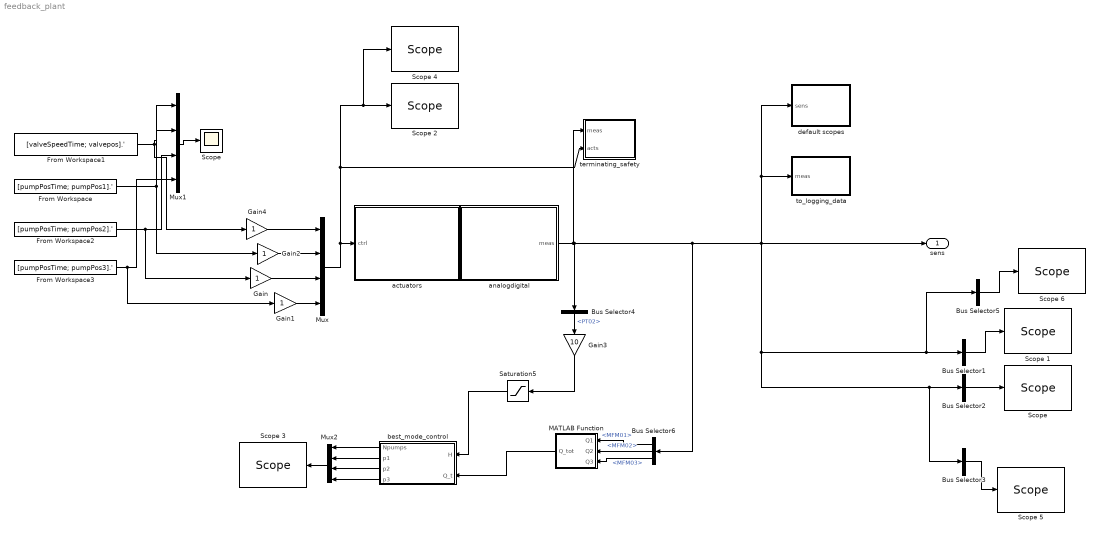
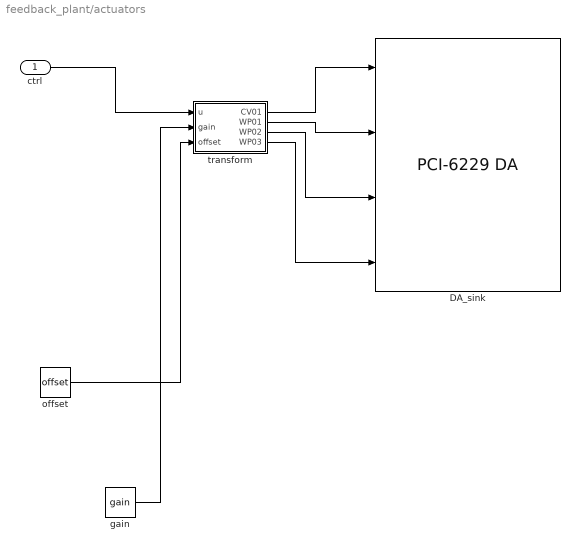
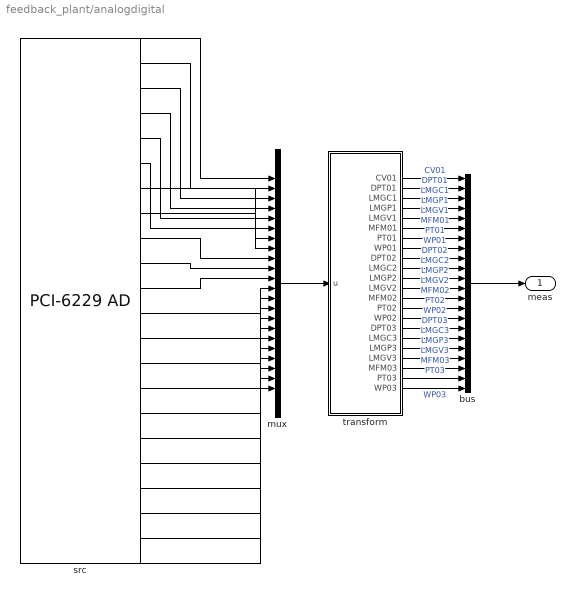
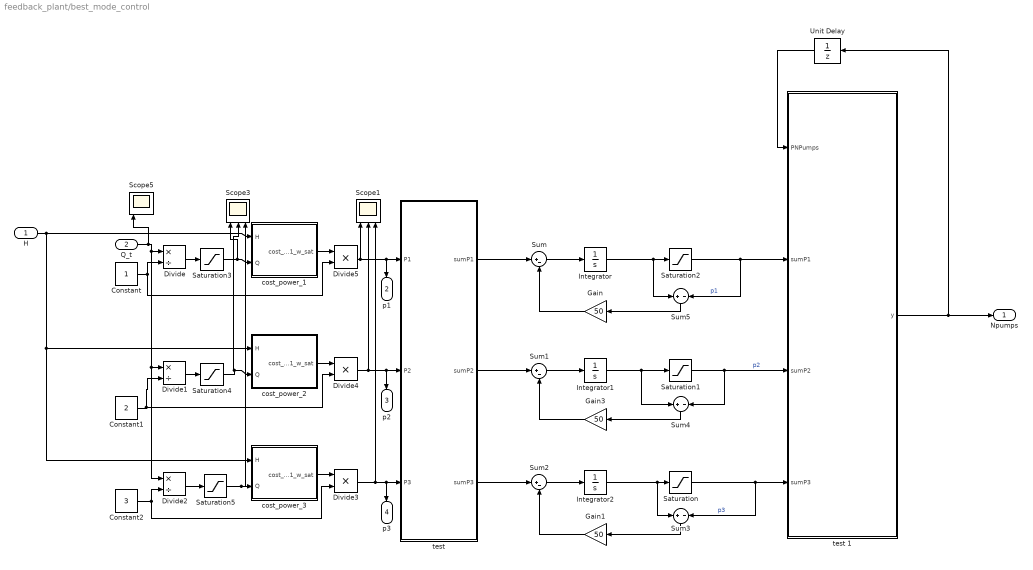
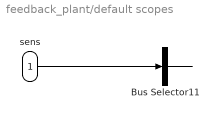
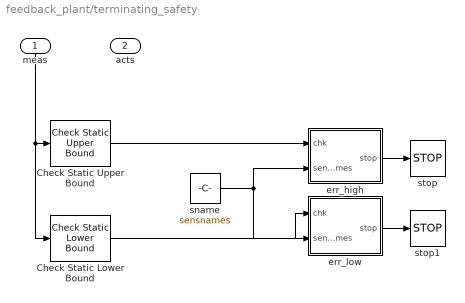
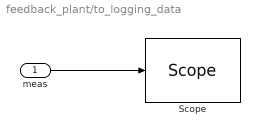
== matlab function feedback_plant/actuators/transform ==
function [CV01,WP01,WP02,WP03]  = fcn(u,gain,offset)
   y = u.*gain-offset;
CV01 = y(1);
WP01 = y(2);
WP02 = y(3);
WP03 = y(4);

== matlab function feedback_plant/analogdigital/transform ==
function [CV01,DPT01,LMGC1,LMGP1,LMGV1,MFM01,PT01,WP01,DPT02,LMGC2,LMGP2,LMGV2,MFM02,PT02,WP02,DPT03,LMGC3,LMGP3,LMGV3,MFM03,PT03,WP03]  = fcn(u,gain,offset)
   y = u(:).*gain(:)-offset(:);
CV01 = y(1);
DPT01 = y(2);
LMGC1 = y(3);
LMGP1 = y(4);
LMGV1 = y(5);
MFM01 = y(6);
PT01 = y(7);
WP01 = y(8);
DPT02 = y(9);
LMGC2 = y(10);
LMGP2 = y(11);
LMGV2 = y(12);
MFM02 = y(13);
PT02 = y(14);
WP02 = y(15);
DPT03 = y(16);
LMGC3 = y(17);
LMGP3 = y(18);
LMGV3 = y(19);
MFM03 = y(20);
PT03 = y(21);
WP03 = y(22);

== matlab function feedback_plant/MATLAB Function ==
function Q_tot = fcn(Q1, Q2, Q3)

Q_tot = ((Q1 + Q2 + Q3) *60 * 60)/1000;

== matlab function feedback_plant/terminating_safety/err_high ==
function stop  = fcn(chk, sensnames)
%#codegen
%test = char(sensnames.');
test = sensnames.';
k = find(test == 47);
k = [0 k];
k = [k numel(test)];
stop = 0;
for i = 1:numel(chk)
    if chk(i) == 0
        str = char(test(k(i)+1:k(i+1)-1));
        Error = [str ': VALUE TOO HIGH ']
        coder.ceval('printf', ['%s' 10 0], Error);
        stop = stop+1;
    end
end

== matlab function feedback_plant/terminating_safety/err_low ==
function stop  = fcn(chk, sensnames)
%#codegen
test = char(sensnames.');
k = strfind(test, '/');
k = [0 k];
k = [k numel(sensnames)];
stop = 0;
for i = 1:numel(chk)
    if chk(i) == 0
        str = char(test(k(i)+1:k(i+1)-1));
        Error = [str ': VALUE TOO LOW']
        coder.ceval('printf', ['%s' 10 0], Error);
        stop = stop+1;
    end
end

== matlab function feedback_plant/best_mode_control/cost_power_1 ==
function cost_power_1_w_sat = cost_power_1(H,Q)
%#codegen

%    This function was generated by the Symbolic Math Toolbox version 7.0.
%    14-Oct-2016 11:25:59

t2 = H.^2;
t3 = Q.^2;
t4 = H.*1.396903852036515e2;
t5 = Q.*3.495225250698616e1;
t6 = H.*t3.*1.223287779152999e-1;
t7 = Q.*t2.*1.66325485327369e-1;
t8 = H.*t2.*2.226602402994795e-2;
t9 = t3.*3.770314092453583e1;
t13 = t2.*2.5749360250113;
t14 = Q.*t3.*1.742768641280902;
t15 = H.*Q.*1.124558547771882e1;
t10 = t4+t5+t6+t7+t8+t9-t13-t14-t15+5.473012823773138e2;
t11 = t10;
t12 = max([t11,0.0]);
t16 = H.^1.386296711773041;
t17 = t16.*2.358991511181789;
t18 = Q.^2.776519861495102;
t19 = t18.*1.317701188625407;
t20 = H.*Q.*2.773249178787912;
t21 = t17+t19+t20+2.725420441582497e1;
cost_power_1_w_sat = double(((t12 < 3.6e2) || (1.8e3 < t21)) || (3.6e3 < t12)).*5.0e4+t21.*double(((3.6e2 <= t12) && (t21 <= 1.8e3)) && (t12 <= 3.6e3));

== matlab function feedback_plant/best_mode_control/test
 ==
function [sumP1, sumP2, sumP3] = cost_power_1(P1, P2, P3)
sumP1 = min(P2,P3) - P1;
sumP2 = min(P1,P3) - P2;
sumP3 = min(P1,P2) - P3;

== matlab function feedback_plant/best_mode_control/cost_power_2 ==
function cost_power_1_w_sat = cost_power_2(H,Q)
%#codegen

%    This function was generated by the Symbolic Math Toolbox version 7.0.
%    14-Oct-2016 11:25:59

t2 = H.^2;
t3 = Q.^2;
t4 = H.*1.396903852036515e2;
t5 = Q.*3.495225250698616e1;
t6 = H.*t3.*1.223287779152999e-1;
t7 = Q.*t2.*1.66325485327369e-1;
t8 = H.*t2.*2.226602402994795e-2;
t9 = t3.*3.770314092453583e1;
t13 = t2.*2.5749360250113;
t14 = Q.*t3.*1.742768641280902;
t15 = H.*Q.*1.124558547771882e1;
t10 = t4+t5+t6+t7+t8+t9-t13-t14-t15+5.473012823773138e2;
t11 = t10;
t12 = max([t11,0.0]);
t16 = H.^1.386296711773041;
t17 = t16.*2.358991511181789;
t18 = Q.^2.776519861495102;
t19 = t18.*1.317701188625407;
t20 = H.*Q.*2.773249178787912;
t21 = t17+t19+t20+2.725420441582497e1;
cost_power_1_w_sat = double(((t12 < 3.6e2) || (1.8e3 < t21)) || (3.6e3 < t12)).*5.0e4+t21.*double(((3.6e2 <= t12) && (t21 <= 1.8e3)) && (t12 <= 3.6e3));

== matlab function feedback_plant/best_mode_control/cost_power_3 ==
function cost_power_1_w_sat = cost_power_3(H,Q)
%#codegen

%    This function was generated by the Symbolic Math Toolbox version 7.0.
%    14-Oct-2016 11:25:59

t2 = H.^2;
t3 = Q.^2;
t4 = H.*1.396903852036515e2;
t5 = Q.*3.495225250698616e1;
t6 = H.*t3.*1.223287779152999e-1;
t7 = Q.*t2.*1.66325485327369e-1;
t8 = H.*t2.*2.226602402994795e-2;
t9 = t3.*3.770314092453583e1;
t13 = t2.*2.5749360250113;
t14 = Q.*t3.*1.742768641280902;
t15 = H.*Q.*1.124558547771882e1;
t10 = t4+t5+t6+t7+t8+t9-t13-t14-t15+5.473012823773138e2;
t11 = t10;
t12 = max([t11,0.0]);
t16 = H.^1.386296711773041;
t17 = t16.*2.358991511181789;
t18 = Q.^2.776519861495102;
t19 = t18.*1.317701188625407;
t20 = H.*Q.*2.773249178787912;
t21 = t17+t19+t20+2.725420441582497e1;
cost_power_1_w_sat = double(((t12 < 3.6e2) || (1.8e3 < t21)) || (3.6e3 < t12)).*5.0e4+t21.*double(((3.6e2 <= t12) && (t21 <= 1.8e3)) && (t12 <= 3.6e3));

== matlab function feedback_plant/best_mode_control/test
1 ==
function y = cost_power_1(PNPumps,sumP1, sumP2, sumP3)
powerVector = [sumP1, sumP2, sumP3];
[~,Npumps] = max([sumP1, sumP2, sumP3]);
if Npumps == PNPumps
    y = Npumps;
else 
    if abs(powerVector(Npumps) - powerVector(PNPumps)) > 10
        y = Npumps;
    else
        y = PNPumps;
    end
    
end

/*
 * feedback_plant.c
 *
 * Academic License - for use in teaching, academic research, and meeting
 * course requirements at degree granting institutions only.  Not for
 * government, commercial, or other organizational use.
 *
 * Code generation for model "feedback_plant".
 *
 * Model version              : 1.348
 * Simulink Coder version : 8.10 (R2016a) 10-Feb-2016
 * C source code generated on : Sun Oct 16 17:14:45 2016
 *
 * Target selection: slrt.tlc
 * Note: GRT includes extra infrastructure and instrumentation for prototyping
 * Embedded hardware selection: Generic->32-bit x86 compatible
 * Code generation objectives: Unspecified
 * Validation result: Not run
 */

#include "rt_logging_mmi.h"
#include "feedback_plant_capi.h"
#include "feedback_plant.h"
#include "feedback_plant_private.h"

/* Block signals (auto storage) */
B_feedback_plant_T feedback_plant_B;

/* Continuous states */
X_feedback_plant_T feedback_plant_X;

/* Block states (auto storage) */
DW_feedback_plant_T feedback_plant_DW;

/* External outputs (root outports fed by signals with auto storage) */
ExtY_feedback_plant_T feedback_plant_Y;

/* Real-time model */
RT_MODEL_feedback_plant_T feedback_plant_M_;
RT_MODEL_feedback_plant_T *const feedback_plant_M = &feedback_plant_M_;

/*
 * This function updates continuous states using the ODE3 fixed-step
 * solver algorithm
 */
static void rt_ertODEUpdateContinuousStates(RTWSolverInfo *si )
{
  /* Solver Matrices */
  static const real_T rt_ODE3_A[3] = {
    1.0/2.0, 3.0/4.0, 1.0
  };

  static const real_T rt_ODE3_B[3][3] = {
    { 1.0/2.0, 0.0, 0.0 },

    { 0.0, 3.0/4.0, 0.0 },

    { 2.0/9.0, 1.0/3.0, 4.0/9.0 }
  };

  time_T t = rtsiGetT(si);
  time_T tnew = rtsiGetSolverStopTime(si);
  time_T h = rtsiGetStepSize(si);
  real_T *x = rtsiGetContStates(si);
  ODE3_IntgData *id = (ODE3_IntgData *)rtsiGetSolverData(si);
  real_T *y = id->y;
  real_T *f0 = id->f[0];
  real_T *f1 = id->f[1];
  real_T *f2 = id->f[2];
  real_T hB[3];
  int_T i;
  int_T nXc = 3;
  rtsiSetSimTimeStep(si,MINOR_TIME_STEP);

  /* Save the state values at time t in y, we'll use x as ynew. */
  (void) memcpy(y, x,
                (uint_T)nXc*sizeof(real_T));

  /* Assumes that rtsiSetT and ModelOutputs are up-to-date */
  /* f0 = f(t,y) */
  rtsiSetdX(si, f0);
  feedback_plant_derivatives();

  /* f(:,2) = feval(odefile, t + hA(1), y + f*hB(:,1), args(:)(*)); */
  hB[0] = h * rt_ODE3_B[0][0];
  for (i = 0; i < nXc; i++) {
    x[i] = y[i] + (f0[i]*hB[0]);
  }

  rtsiSetT(si, t + h*rt_ODE3_A[0]);
  rtsiSetdX(si, f1);
  feedback_plant_output();
  feedback_plant_derivatives();

  /* f(:,3) = feval(odefile, t + hA(2), y + f*hB(:,2), args(:)(*)); */
  for (i = 0; i <= 1; i++) {
    hB[i] = h * rt_ODE3_B[1][i];
  }

  for (i = 0; i < nXc; i++) {
    x[i] = y[i] + (f0[i]*hB[0] + f1[i]*hB[1]);
  }

  rtsiSetT(si, t + h*rt_ODE3_A[1]);
  rtsiSetdX(si, f2);
  feedback_plant_output();
  feedback_plant_derivatives();

  /* tnew = t + hA(3);
     ynew = y + f*hB(:,3); */
  for (i = 0; i <= 2; i++) {
    hB[i] = h * rt_ODE3_B[2][i];
  }

  for (i = 0; i < nXc; i++) {
    x[i] = y[i] + (f0[i]*hB[0] + f1[i]*hB[1] + f2[i]*hB[2]);
  }

  rtsiSetT(si, tnew);
  rtsiSetSimTimeStep(si,MAJOR_TIME_STEP);
}

real_T rt_powd_snf(real_T u0, real_T u1)
{
  real_T y;
  real_T tmp;
  real_T tmp_0;
  if (rtIsNaN(u0) || rtIsNaN(u1)) {
    y = (rtNaN);
  } else {
    tmp = fabs(u0);
    tmp_0 = fabs(u1);
    if (rtIsInf(u1)) {
      if (tmp == 1.0) {
        y = (rtNaN);
      } else if (tmp > 1.0) {
        if (u1 > 0.0) {
          y = (rtInf);
        } else {
          y = 0.0;
        }
      } else if (u1 > 0.0) {
        y = 0.0;
      } else {
        y = (rtInf);
      }
    } else if (tmp_0 == 0.0) {
      y = 1.0;
    } else if (tmp_0 == 1.0) {
      if (u1 > 0.0) {
        y = u0;
      } else {
        y = 1.0 / u0;
      }
    } else if (u1 == 2.0) {
      y = u0 * u0;
    } else if ((u1 == 0.5) && (u0 >= 0.0)) {
      y = sqrt(u0);
    } else if ((u0 < 0.0) && (u1 > floor(u1))) {
      y = (rtNaN);
    } else {
      y = pow(u0, u1);
    }
  }

  return y;
}

/* Model output function */
void feedback_plant_output(void)
{
  real_T y[22];
  uint8_T test[124];
  boolean_T x[124];
  int32_T idx;
  int32_T b_ii;
  static const char_T f[17] = { ':', ' ', 'V', 'A', 'L', 'U', 'E', ' ', 'T', 'O',
    'O', ' ', 'H', 'I', 'G', 'H', ' ' };

  boolean_T exitg1;
  char_T test_0[124];
  int8_T matches[124];
  int32_T j;
  static const char_T e[15] = { ':', ' ', 'V', 'A', 'L', 'U', 'E', ' ', 'T', 'O',
    'O', ' ', 'L', 'O', 'W' };

  boolean_T c;
  real_T powerVector[3];
  real_T varargin_1[3];
  int32_T i;
  char_T e_0[4];
  char_T d[4];
  int32_T loop_ub;
  int8_T k_data[126];
  char_T Error_data[140];
  int8_T ii_data[124];
  int8_T k_data_0[126];
  char_T Error_data_0[138];
  char_T test_data[123];
  char_T test_data_0[123];
  real_T y_idx_0;
  real_T y_idx_1;
  real_T y_idx_2;
  real_T y_idx_3;
  int32_T tmp;
  int8_T tmp_0;
  if (rtmIsMajorTimeStep(feedback_plant_M)) {
    /* set solver stop time */
    if (!(feedback_plant_M->Timing.clockTick0+1)) {
      rtsiSetSolverStopTime(&feedback_plant_M->solverInfo,
                            ((feedback_plant_M->Timing.clockTickH0 + 1) *
        feedback_plant_M->Timing.stepSize0 * 4294967296.0));
    } else {
      rtsiSetSolverStopTime(&feedback_plant_M->solverInfo,
                            ((feedback_plant_M->Timing.clockTick0 + 1) *
        feedback_plant_M->Timing.stepSize0 +
        feedback_plant_M->Timing.clockTickH0 *
        feedback_plant_M->Timing.stepSize0 * 4294967296.0));
    }
  }                                    /* end MajorTimeStep */

  /* Update absolute time of base rate at minor time step */
  if (rtmIsMinorTimeStep(feedback_plant_M)) {
    feedback_plant_M->Timing.t[0] = rtsiGetT(&feedback_plant_M->solverInfo);
  }

  if (rtmIsMajorTimeStep(feedback_plant_M)) {
    /* Level2 S-Function Block: '<S10>/src' (adnipcim) */
    {
      SimStruct *rts = feedback_plant_M->childSfunctions[0];
      sfcnOutputs(rts, 1);
    }

    /* SignalConversion: '<S16>/TmpSignal ConversionAt SFunction Inport1' incorporates:
     *  MATLAB Function: '<S10>/transform'
     */
    feedback_plant_B.TmpSignalConversionAtSFunctionI[0] =
      feedback_plant_B.src_o1;
    feedback_plant_B.TmpSignalConversionAtSFunctionI[1] =
      feedback_plant_B.src_o2;
    feedback_plant_B.TmpSignalConversionAtSFunctionI[2] =
      feedback_plant_B.src_o3;
    feedback_plant_B.TmpSignalConversionAtSFunctionI[3] =
      feedback_plant_B.src_o4;
    feedback_plant_B.TmpSignalConversionAtSFunctionI[4] =
      feedback_plant_B.src_o5;
    feedback_plant_B.TmpSignalConversionAtSFunctionI[5] =
      feedback_plant_B.src_o6;
    feedback_plant_B.TmpSignalConversionAtSFunctionI[6] =
      feedback_plant_B.src_o7;
    feedback_plant_B.TmpSignalConversionAtSFunctionI[7] =
      feedback_plant_B.src_o8;
    feedback_plant_B.TmpSignalConversionAtSFunctionI[8] =
      feedback_plant_B.src_o9;
    feedback_plant_B.TmpSignalConversionAtSFunctionI[9] =
      feedback_plant_B.src_o10;
    feedback_plant_B.TmpSignalConversionAtSFunctionI[10] =
      feedback_plant_B.src_o11;
    feedback_plant_B.TmpSignalConversionAtSFunctionI[11] =
      feedback_plant_B.src_o12;
    feedback_plant_B.TmpSignalConversionAtSFunctionI[12] =
      feedback_plant_B.src_o13;
    feedback_plant_B.TmpSignalConversionAtSFunctionI[13] =
      feedback_plant_B.src_o14;
    feedback_plant_B.TmpSignalConversionAtSFunctionI[14] =
      feedback_plant_B.src_o15;
    feedback_plant_B.TmpSignalConversionAtSFunctionI[15] =
      feedback_plant_B.src_o16;
    feedback_plant_B.TmpSignalConversionAtSFunctionI[16] =
      feedback_plant_B.src_o17;
    feedback_plant_B.TmpSignalConversionAtSFunctionI[17] =
      feedback_plant_B.src_o18;
    feedback_plant_B.TmpSignalConversionAtSFunctionI[18] =
      feedback_plant_B.src_o19;
    feedback_plant_B.TmpSignalConversionAtSFunctionI[19] =
      feedback_plant_B.src_o20;
    feedback_plant_B.TmpSignalConversionAtSFunctionI[20] =
      feedback_plant_B.src_o21;
    feedback_plant_B.TmpSignalConversionAtSFunctionI[21] =
      feedback_plant_B.src_o22;

    /* MATLAB Function: '<S10>/transform' */
    /* MATLAB Function 'analogdigital/transform': '<S16>:1' */
    /* '<S16>:1:2' */
    for (i = 0; i < 22; i++) {
      y[i] = feedback_plant_B.TmpSignalConversionAtSFunctionI[i] *
        feedback_plant_ConstP.transform_gain[i] -
        feedback_plant_ConstP.transform_offset[i];
    }

    /* '<S16>:1:3' */
    feedback_plant_B.CV01 = y[0];

    /* '<S16>:1:4' */
    feedback_plant_B.DPT01 = y[1];

    /* '<S16>:1:5' */
    feedback_plant_B.LMGC1 = y[2];

    /* '<S16>:1:6' */
    feedback_plant_B.LMGP1 = y[3];

    /* '<S16>:1:7' */
    feedback_plant_B.LMGV1 = y[4];

    /* '<S16>:1:8' */
    feedback_plant_B.MFM01 = y[5];

    /* '<S16>:1:9' */
    feedback_plant_B.PT01 = y[6];

    /* '<S16>:1:10' */
    feedback_plant_B.WP01 = y[7];

    /* '<S16>:1:11' */
    feedback_plant_B.DPT02 = y[8];

    /* '<S16>:1:12' */
    feedback_plant_B.LMGC2 = y[9];

    /* '<S16>:1:13' */
    feedback_plant_B.LMGP2 = y[10];

    /* '<S16>:1:14' */
    feedback_plant_B.LMGV2 = y[11];

    /* '<S16>:1:15' */
    feedback_plant_B.MFM02 = y[12];

    /* '<S16>:1:16' */
    feedback_plant_B.PT02 = y[13];

    /* '<S16>:1:17' */
    feedback_plant_B.WP02 = y[14];

    /* '<S16>:1:18' */
    feedback_plant_B.DPT03 = y[15];

    /* '<S16>:1:19' */
    feedback_plant_B.LMGC3 = y[16];

    /* '<S16>:1:20' */
    feedback_plant_B.LMGP3 = y[17];

    /* '<S16>:1:21' */
    feedback_plant_B.LMGV3 = y[18];

    /* '<S16>:1:22' */
    feedback_plant_B.MFM03 = y[19];

    /* '<S16>:1:23' */
    feedback_plant_B.PT03 = y[20];

    /* '<S16>:1:24' */
    feedback_plant_B.WP03 = y[21];

    /* Outport: '<Root>/sens' */
    feedback_plant_Y.sens[0] = feedback_plant_B.CV01;
    feedback_plant_Y.sens[1] = feedback_plant_B.DPT01;
    feedback_plant_Y.sens[2] = feedback_plant_B.LMGC1;
    feedback_plant_Y.sens[3] = feedback_plant_B.LMGP1;
    feedback_plant_Y.sens[4] = feedback_plant_B.LMGV1;
    feedback_plant_Y.sens[5] = feedback_plant_B.MFM01;
    feedback_plant_Y.sens[6] = feedback_plant_B.PT01;
    feedback_plant_Y.sens[7] = feedback_plant_B.WP01;
    feedback_plant_Y.sens[8] = feedback_plant_B.DPT02;
    feedback_plant_Y.sens[9] = feedback_plant_B.LMGC2;
    feedback_plant_Y.sens[10] = feedback_plant_B.LMGP2;
    feedback_plant_Y.sens[11] = feedback_plant_B.LMGV2;
    feedback_plant_Y.sens[12] = feedback_plant_B.MFM02;
    feedback_plant_Y.sens[13] = feedback_plant_B.PT02;
    feedback_plant_Y.sens[14] = feedback_plant_B.WP02;
    feedback_plant_Y.sens[15] = feedback_plant_B.DPT03;
    feedback_plant_Y.sens[16] = feedback_plant_B.LMGC3;
    feedback_plant_Y.sens[17] = feedback_plant_B.LMGP3;
    feedback_plant_Y.sens[18] = feedback_plant_B.LMGV3;
    feedback_plant_Y.sens[19] = feedback_plant_B.MFM03;
    feedback_plant_Y.sens[20] = feedback_plant_B.PT03;
    feedback_plant_Y.sens[21] = feedback_plant_B.WP03;
  }

  /* FromWorkspace: '<Root>/From Workspace1' */
  {
    real_T t = feedback_plant_M->Timing.t[0];
    real_T *pTimeValues = (real_T *)
      feedback_plant_DW.FromWorkspace1_PWORK.TimePtr;
    real_T *pDataValues = (real_T *)
      feedback_plant_DW.FromWorkspace1_PWORK.DataPtr;
    if (t < pTimeValues[0]) {
      feedback_plant_B.FromWorkspace1 = 0.0;
    } else if (t >= pTimeValues[20]) {
      feedback_plant_B.FromWorkspace1 = pDataValues[20];
    } else {
      int_T currTimeIndex = feedback_plant_DW.FromWorkspace1_IWORK.PrevIndex;
      if (t < pTimeValues[currTimeIndex]) {
        while (t < pTimeValues[currTimeIndex]) {
          currTimeIndex--;
        }
      } else {
        while (t >= pTimeValues[currTimeIndex + 1]) {
          currTimeIndex++;
        }
      }

      feedback_plant_B.FromWorkspace1 = pDataValues[currTimeIndex];
      feedback_plant_DW.FromWorkspace1_IWORK.PrevIndex = currTimeIndex;
    }
  }

  /* FromWorkspace: '<Root>/From Workspace' */
  {
    real_T t = feedback_plant_M->Timing.t[0];
    real_T *pTimeValues = (real_T *)
      feedback_plant_DW.FromWorkspace_PWORK.TimePtr;
    real_T *pDataValues = (real_T *)
      feedback_plant_DW.FromWorkspace_PWORK.DataPtr;
    if (t < pTimeValues[0]) {
      feedback_plant_B.FromWorkspace = 0.0;
    } else if (t >= pTimeValues[482]) {
      feedback_plant_B.FromWorkspace = pDataValues[482];
    } else {
      int_T currTimeIndex = feedback_plant_DW.FromWorkspace_IWORK.PrevIndex;
      if (t < pTimeValues[currTimeIndex]) {
        while (t < pTimeValues[currTimeIndex]) {
          currTimeIndex--;
        }
      } else {
        while (t >= pTimeValues[currTimeIndex + 1]) {
          currTimeIndex++;
        }
      }

      feedback_plant_B.FromWorkspace = pDataValues[currTimeIndex];
      feedback_plant_DW.FromWorkspace_IWORK.PrevIndex = currTimeIndex;
    }
  }

  /* FromWorkspace: '<Root>/From Workspace2' */
  {
    real_T t = feedback_plant_M->Timing.t[0];
    real_T *pTimeValues = (real_T *)
      feedback_plant_DW.FromWorkspace2_PWORK.TimePtr;
    real_T *pDataValues = (real_T *)
      feedback_plant_DW.FromWorkspace2_PWORK.DataPtr;
    if (t < pTimeValues[0]) {
      feedback_plant_B.FromWorkspace2 = 0.0;
    } else if (t >= pTimeValues[482]) {
      feedback_plant_B.FromWorkspace2 = pDataValues[482];
    } else {
      int_T currTimeIndex = feedback_plant_DW.FromWorkspace2_IWORK.PrevIndex;
      if (t < pTimeValues[currTimeIndex]) {
        while (t < pTimeValues[currTimeIndex]) {
          currTimeIndex--;
        }
      } else {
        while (t >= pTimeValues[currTimeIndex + 1]) {
          currTimeIndex++;
        }
      }

      feedback_plant_B.FromWorkspace2 = pDataValues[currTimeIndex];
      feedback_plant_DW.FromWorkspace2_IWORK.PrevIndex = currTimeIndex;
    }
  }

  /* FromWorkspace: '<Root>/From Workspace3' */
  {
    real_T t = feedback_plant_M->Timing.t[0];
    real_T *pTimeValues = (real_T *)
      feedback_plant_DW.FromWorkspace3_PWORK.TimePtr;
    real_T *pDataValues = (real_T *)
      feedback_plant_DW.FromWorkspace3_PWORK.DataPtr;
    if (t < pTimeValues[0]) {
      feedback_plant_B.FromWorkspace3 = 0.0;
    } else if (t >= pTimeValues[482]) {
      feedback_plant_B.FromWorkspace3 = pDataValues[482];
    } else {
      int_T currTimeIndex = feedback_plant_DW.FromWorkspace3_IWORK.PrevIndex;
      if (t < pTimeValues[currTimeIndex]) {
        while (t < pTimeValues[currTimeIndex]) {
          currTimeIndex--;
        }
      } else {
        while (t >= pTimeValues[currTimeIndex + 1]) {
          currTimeIndex++;
        }
      }

      feedback_plant_B.FromWorkspace3 = pDataValues[currTimeIndex];
      feedback_plant_DW.FromWorkspace3_IWORK.PrevIndex = currTimeIndex;
    }
  }

  if (rtmIsMajorTimeStep(feedback_plant_M)) {
    /* ok to acquire for <S2>/S-Function */
    feedback_plant_DW.SFunction_IWORK.AcquireOK = 1;

    /* ok to acquire for <S3>/S-Function */
    feedback_plant_DW.SFunction_IWORK_l.AcquireOK = 1;
  }

  /* ok to acquire for <S4>/S-Function */
  feedback_plant_DW.SFunction_IWORK_i.AcquireOK = 1;

  /* ok to acquire for <S5>/S-Function */
  feedback_plant_DW.SFunction_IWORK_o.AcquireOK = 1;

  /* ok to acquire for <S6>/S-Function */
  feedback_plant_DW.SFunction_IWORK_n.AcquireOK = 1;
  if (rtmIsMajorTimeStep(feedback_plant_M)) {
    /* ok to acquire for <S7>/S-Function */
    feedback_plant_DW.SFunction_IWORK_g.AcquireOK = 1;

    /* ok to acquire for <S8>/S-Function */
    feedback_plant_DW.SFunction_IWORK_l4.AcquireOK = 1;
  }

  /* Gain: '<Root>/Gain4' */
  feedback_plant_B.Gain4 = 1.0 * feedback_plant_B.FromWorkspace1;

  /* Gain: '<Root>/Gain2' */
  feedback_plant_B.Gain2 = 1.0 * feedback_plant_B.FromWorkspace;

  /* Gain: '<Root>/Gain' */
  feedback_plant_B.Gain = 1.0 * feedback_plant_B.FromWorkspace2;

  /* Gain: '<Root>/Gain1' */
  feedback_plant_B.Gain1 = 1.0 * feedback_plant_B.FromWorkspace3;

  /* SignalConversion: '<S15>/TmpSignal ConversionAt SFunction Inport1' incorporates:
   *  MATLAB Function: '<S9>/transform'
   */
  feedback_plant_B.TmpSignalConversionAtSFunctio_d[0] = feedback_plant_B.Gain4;
  feedback_plant_B.TmpSignalConversionAtSFunctio_d[1] = feedback_plant_B.Gain2;
  feedback_plant_B.TmpSignalConversionAtSFunctio_d[2] = feedback_plant_B.Gain;
  feedback_plant_B.TmpSignalConversionAtSFunctio_d[3] = feedback_plant_B.Gain1;

  /* MATLAB Function: '<S9>/transform' incorporates:
   *  Constant: '<S9>/gain'
   *  Constant: '<S9>/offset'
   */
  /* MATLAB Function 'actuators/transform': '<S15>:1' */
  /* '<S15>:1:2' */
  y_idx_0 = feedback_plant_B.TmpSignalConversionAtSFunctio_d[0] * 10.0 - (-0.0);
  y_idx_1 = feedback_plant_B.TmpSignalConversionAtSFunctio_d[1] * 10.0 - (-0.0);
  y_idx_2 = feedback_plant_B.TmpSignalConversionAtSFunctio_d[2] * 10.0 - (-0.0);
  y_idx_3 = feedback_plant_B.TmpSignalConversionAtSFunctio_d[3] * 10.0 - (-0.0);

  /* '<S15>:1:3' */
  feedback_plant_B.CV01_j = y_idx_0;

  /* '<S15>:1:4' */
  feedback_plant_B.WP01_o = y_idx_1;

  /* '<S15>:1:5' */
  feedback_plant_B.WP02_l = y_idx_2;

  /* '<S15>:1:6' */
  feedback_plant_B.WP03_d = y_idx_3;
  if (rtmIsMajorTimeStep(feedback_plant_M)) {
    /* Level2 S-Function Block: '<S9>/DA_sink' (danipcim) */
    {
      SimStruct *rts = feedback_plant_M->childSfunctions[1];
      sfcnOutputs(rts, 1);
    }

    /* RelationalOperator: '<S23>/max_relop' incorporates:
     *  Constant: '<S23>/max_val'
     */
    feedback_plant_B.max_relop[0] = (feedback_plant_B.CV01 <= 1050.05);
    feedback_plant_B.max_relop[1] = (feedback_plant_B.DPT01 <= 1050.05);
    feedback_plant_B.max_relop[2] = (feedback_plant_B.LMGC1 <= 1050.05);
    feedback_plant_B.max_relop[3] = (feedback_plant_B.LMGP1 <= 4200.05);
    feedback_plant_B.max_relop[4] = (feedback_plant_B.LMGV1 <= 1050.05);
    feedback_plant_B.max_relop[5] = (feedback_plant_B.MFM01 <= 1050.05);
    feedback_plant_B.max_relop[6] = (feedback_plant_B.PT01 <= 1050.05);
    feedback_plant_B.max_relop[7] = (feedback_plant_B.WP01 <= 4200.05);
    feedback_plant_B.max_relop[8] = (feedback_plant_B.DPT02 <= 1050.05);
    feedback_plant_B.max_relop[9] = (feedback_plant_B.LMGC2 <= 1050.05);
    feedback_plant_B.max_relop[10] = (feedback_plant_B.LMGP2 <= 4200.05);
    feedback_plant_B.max_relop[11] = (feedback_plant_B.LMGV2 <= 1050.05);
    feedback_plant_B.max_relop[12] = (feedback_plant_B.MFM02 <= 1050.05);
    feedback_plant_B.max_relop[13] = (feedback_plant_B.PT02 <= 1050.05);
    feedback_plant_B.max_relop[14] = (feedback_plant_B.WP02 <= 4200.05);
    feedback_plant_B.max_relop[15] = (feedback_plant_B.DPT03 <= 1050.05);
    feedback_plant_B.max_relop[16] = (feedback_plant_B.LMGC3 <= 1050.05);
    feedback_plant_B.max_relop[17] = (feedback_plant_B.LMGP3 <= 4200.05);
    feedback_plant_B.max_relop[18] = (feedback_plant_B.LMGV3 <= 1050.05);
    feedback_plant_B.max_relop[19] = (feedback_plant_B.MFM03 <= 1050.05);
    feedback_plant_B.max_relop[20] = (feedback_plant_B.PT03 <= 1050.05);
    feedback_plant_B.max_relop[21] = (feedback_plant_B.WP03 <= 4200.05);

    /* MATLAB Function: '<S13>/err_high' incorporates:
     *  Constant: '<S13>/sname'
     */
    /* MATLAB Function 'terminating_safety/err_high': '<S24>:1' */
    /* '<S24>:1:13' */
    /* '<S24>:1:12' */
    /* test = char(sensnames.'); */
    /* '<S24>:1:4' */
    /* '<S24>:1:5' */
    for (i = 0; i < 124; i++) {
      test[i] = feedback_plant_ConstP.sname_Value[i];
      x[i] = (feedback_plant_ConstP.sname_Value[i] == 47);
    }

    idx = 0;
    b_ii = 1;
    exitg1 = false;
    while ((!exitg1) && (b_ii < 125)) {
      c = false;
      if (x[b_ii - 1]) {
        idx++;
        ii_data[idx - 1] = (int8_T)b_ii;
        if (idx >= 124) {
          exitg1 = true;
        } else {
          c = true;
        }
      } else {
        c = true;
      }

      if (c) {
        b_ii++;
      }
    }

    if (1 > idx) {
      idx = 0;
    }

    /* '<S24>:1:6' */
    /* '<S24>:1:7' */
    k_data[0] = 0;
    for (i = 0; i < idx; i++) {
      k_data[i + 1] = ii_data[i];
    }

    k_data[1 + idx] = 124;

    /* '<S24>:1:8' */
    y_idx_0 = 0.0;

    /* '<S24>:1:9' */
    for (idx = 0; idx < 22; idx++) {
      /* '<S24>:1:9' */
      if (!feedback_plant_B.max_relop[idx]) {
        /* '<S24>:1:10' */
        if (k_data[idx] + 1 > k_data[1 + idx] - 1) {
          b_ii = 1;
          j = 1;
        } else {
          b_ii = k_data[idx] + 1;
          j = k_data[1 + idx];
        }

        /* '<S24>:1:11' */
        /* '<S24>:1:12' */
        tmp = j - b_ii;
        loop_ub = j - b_ii;
        for (i = 0; i < loop_ub; i++) {
          test_data[i] = (int8_T)test[(b_ii + i) - 1];
        }

        tmp_0 = (int8_T)(j - b_ii);
        for (i = 0; i < tmp; i++) {
          test_data_0[i] = test_data[i];
        }

        tmp = tmp_0;
        for (i = 0; i < tmp; i++) {
          Error_data[i] = test_data_0[i];
        }

        for (i = 0; i < 17; i++) {
          Error_data[i + tmp] = f[i];
        }

        e_0[0] = '%';
        e_0[1] = 's';
        e_0[2] = '\x0a';
        e_0[3] = '\x00';
        printf(e_0, &Error_data[0]);

        /* '<S24>:1:14' */
        y_idx_0++;
      }

      /* '<S24>:1:9' */
    }

    feedback_plant_B.stop_a = y_idx_0;

    /* End of MATLAB Function: '<S13>/err_high' */

    /* Stop: '<S13>/stop' */
    if (feedback_plant_B.stop_a != 0.0) {
      rtmSetStopRequested(feedback_plant_M, 1);
    }

    /* End of Stop: '<S13>/stop' */

    /* RelationalOperator: '<S22>/min_relop' incorporates:
     *  Constant: '<S22>/min_val'
     */
    feedback_plant_B.min_relop[0] = ((-51.050000000000004) <=
      feedback_plant_B.CV01);
    feedback_plant_B.min_relop[1] = ((-51.050000000000004) <=
      feedback_plant_B.DPT01);
    feedback_plant_B.min_relop[2] = ((-51.050000000000004) <=
      feedback_plant_B.LMGC1);
    feedback_plant_B.min_relop[3] = ((-201.05) <= feedback_plant_B.LMGP1);
    feedback_plant_B.min_relop[4] = ((-51.050000000000004) <=
      feedback_plant_B.LMGV1);
    feedback_plant_B.min_relop[5] = ((-51.050000000000004) <=
      feedback_plant_B.MFM01);
    feedback_plant_B.min_relop[6] = ((-51.050000000000004) <=
      feedback_plant_B.PT01);
    feedback_plant_B.min_relop[7] = ((-201.05) <= feedback_plant_B.WP01);
    feedback_plant_B.min_relop[8] = ((-51.050000000000004) <=
      feedback_plant_B.DPT02);
    feedback_plant_B.min_relop[9] = ((-51.050000000000004) <=
      feedback_plant_B.LMGC2);
    feedback_plant_B.min_relop[10] = ((-201.05) <= feedback_plant_B.LMGP2);
    feedback_plant_B.min_relop[11] = ((-51.050000000000004) <=
      feedback_plant_B.LMGV2);
    feedback_plant_B.min_relop[12] = ((-51.050000000000004) <=
      feedback_plant_B.MFM02);
    feedback_plant_B.min_relop[13] = ((-51.050000000000004) <=
      feedback_plant_B.PT02);
    feedback_plant_B.min_relop[14] = ((-201.05) <= feedback_plant_B.WP02);
    feedback_plant_B.min_relop[15] = ((-51.050000000000004) <=
      feedback_plant_B.DPT03);
    feedback_plant_B.min_relop[16] = ((-51.050000000000004) <=
      feedback_plant_B.LMGC3);
    feedback_plant_B.min_relop[17] = ((-201.05) <= feedback_plant_B.LMGP3);
    feedback_plant_B.min_relop[18] = ((-51.050000000000004) <=
      feedback_plant_B.LMGV3);
    feedback_plant_B.min_relop[19] = ((-51.050000000000004) <=
      feedback_plant_B.MFM03);
    feedback_plant_B.min_relop[20] = ((-51.050000000000004) <=
      feedback_plant_B.PT03);
    feedback_plant_B.min_relop[21] = ((-201.05) <= feedback_plant_B.WP03);

    /* MATLAB Function: '<S13>/err_low' incorporates:
     *  Constant: '<S13>/sname'
     */
    /* MATLAB Function 'terminating_safety/err_low': '<S25>:1' */
    /* '<S25>:1:12' */
    /* '<S25>:1:11' */
    /* '<S25>:1:3' */
    /* '<S25>:1:4' */
    idx = 0;
    for (b_ii = 0; b_ii < 124; b_ii++) {
      test_0[b_ii] = (int8_T)feedback_plant_ConstP.sname_Value[b_ii];
      j = 1;
      while ((j <= 1) && (test_0[b_ii] == '/')) {
        j = 2;
      }

      if (j > 1) {
        matches[idx] = (int8_T)(b_ii + 1);
        idx++;
      }
    }

    for (b_ii = 0; b_ii + 1 <= idx; b_ii++) {
      ii_data[b_ii] = matches[b_ii];
    }

    /* '<S25>:1:5' */
    /* '<S25>:1:6' */
    k_data_0[0] = 0;
    for (i = 0; i < idx; i++) {
      k_data_0[i + 1] = ii_data[i];
    }

    k_data_0[1 + idx] = 124;

    /* '<S25>:1:7' */
    y_idx_0 = 0.0;

    /* '<S25>:1:8' */
    for (idx = 0; idx < 22; idx++) {
      /* '<S25>:1:8' */
      if (!feedback_plant_B.min_relop[idx]) {
        /* '<S25>:1:9' */
        if (k_data_0[idx] + 1 > k_data_0[1 + idx] - 1) {
          b_ii = 1;
          j = 0;
        } else {
          b_ii = k_data_0[idx] + 1;
          j = k_data_0[1 + idx] - 1;
        }

        /* '<S25>:1:10' */
        /* '<S25>:1:11' */
        i = b_ii - 1;
        loop_ub = j - i;
        for (b_ii = 0; b_ii < loop_ub; b_ii++) {
          Error_data_0[b_ii] = test_0[i + b_ii];
        }

        for (b_ii = 0; b_ii < 15; b_ii++) {
          Error_data_0[(b_ii + j) - i] = e[b_ii];
        }

        d[0] = '%';
        d[1] = 's';
        d[2] = '\x0a';
        d[3] = '\x00';
        printf(d, &Error_data_0[0]);

        /* '<S25>:1:13' */
        y_idx_0++;
      }

      /* '<S25>:1:8' */
    }

    feedback_plant_B.stop = y_idx_0;

    /* End of MATLAB Function: '<S13>/err_low' */

    /* Stop: '<S13>/stop1' */
    idx = 1;
    if (feedback_plant_B.stop != 0.0) {
      rtmSetStopRequested(feedback_plant_M, 1);
    }

    /* End of Stop: '<S13>/stop1' */
    for (i = 0; i < 22; i++) {
      /* Assertion: '<S22>/Assertion' */
      utAssert(feedback_plant_B.min_relop[i]);
    }

    for (i = 0; i < 22; i++) {
      /* Assertion: '<S23>/Assertion' */
      utAssert(feedback_plant_B.max_relop[i]);
    }

    /* ok to acquire for <S26>/S-Function */
    feedback_plant_DW.SFunction_IWORK_go.AcquireOK = 1;

    /* Gain: '<Root>/Gain3' */
    feedback_plant_B.Gain3 = 10.0 * feedback_plant_B.PT02;

    /* MATLAB Function: '<Root>/MATLAB Function' */
    /* MATLAB Function 'MATLAB Function': '<S1>:1' */
    /* '<S1>:1:3' */
    feedback_plant_B.Q_tot = ((feedback_plant_B.MFM01 + feedback_plant_B.MFM02)
      + feedback_plant_B.MFM03) * 60.0 * 60.0 / 1000.0;

    /* Saturate: '<Root>/Saturation5' */
    y_idx_0 = feedback_plant_B.Gain3;
    y_idx_1 = 0.001;
    y_idx_2 = 200.0;
    if (y_idx_0 > y_idx_2) {
      feedback_plant_B.Saturation5 = y_idx_2;
    } else if (y_idx_0 < y_idx_1) {
      feedback_plant_B.Saturation5 = y_idx_1;
    } else {
      feedback_plant_B.Saturation5 = y_idx_0;
    }

    /* End of Saturate: '<Root>/Saturation5' */

    /* Product: '<S11>/Divide' incorporates:
     *  Constant: '<S11>/Constant'
     */
    feedback_plant_B.Divide = feedback_plant_B.Q_tot / 1.0;

    /* Saturate: '<S11>/Saturation3' */
    y_idx_0 = feedback_plant_B.Divide;
    y_idx_1 = 0.0;
    y_idx_2 = 15.0;
    if (y_idx_0 > y_idx_2) {
      feedback_plant_B.Saturation3 = y_idx_2;
    } else if (y_idx_0 < y_idx_1) {
      feedback_plant_B.Saturation3 = y_idx_1;
    } else {
      feedback_plant_B.Saturation3 = y_idx_0;
    }

    /* End of Saturate: '<S11>/Saturation3' */

    /* MATLAB Function: '<S11>/cost_power_1' */
    /* MATLAB Function 'best_mode_control/cost_power_1': '<S17>:1' */
    /*     This function was generated by the Symbolic Math Toolbox version 7.0. */
    /*     14-Oct-2016 11:25:59 */
    /* '<S17>:1:7' */
    y_idx_0 = feedback_plant_B.Saturation5 * feedback_plant_B.Saturation5;

    /* '<S17>:1:8' */
    y_idx_1 = feedback_plant_B.Saturation3 * feedback_plant_B.Saturation3;

    /* '<S17>:1:9' */
    /* '<S17>:1:10' */
    /* '<S17>:1:11' */
    /* '<S17>:1:12' */
    /* '<S17>:1:13' */
    /* '<S17>:1:14' */
    /* '<S17>:1:15' */
    /* '<S17>:1:16' */
    /* '<S17>:1:17' */
    /* '<S17>:1:18' */
    /* '<S17>:1:20' */
    y_idx_0 = ((((((((feedback_plant_B.Saturation5 * 139.69038520365149 +
                      feedback_plant_B.Saturation3 * 34.952252506986163) +
                     feedback_plant_B.Saturation5 * y_idx_1 * 0.1223287779152999)
                    + feedback_plant_B.Saturation3 * y_idx_0 * 0.166325485327369)
                   + feedback_plant_B.Saturation5 * y_idx_0 *
                   0.022266024029947949) + y_idx_1 * 37.70314092453583) -
                 y_idx_0 * 2.5749360250113) - feedback_plant_B.Saturation3 *
                y_idx_1 * 1.742768641280902) - feedback_plant_B.Saturation5 *
               feedback_plant_B.Saturation3 * 11.245585477718819) +
      547.30128237731378;
    if (rtIsNaN(y_idx_0)) {
      idx = 2;
      y_idx_0 = 0.0;
    }

    if ((idx < 2) && (0.0 > y_idx_0)) {
      y_idx_0 = 0.0;
    }

    /* '<S17>:1:21' */
    /* '<S17>:1:22' */
    /* '<S17>:1:23' */
    /* '<S17>:1:24' */
    /* '<S17>:1:25' */
    /* '<S17>:1:26' */
    y_idx_1 = ((rt_powd_snf(feedback_plant_B.Saturation5, 1.3862967117730409) *
                2.358991511181789 + rt_powd_snf(feedback_plant_B.Saturation3,
      2.7765198614951019) * 1.3177011886254071) + feedback_plant_B.Saturation5 *
               feedback_plant_B.Saturation3 * 2.7732491787879119) +
      27.254204415824969;
    if ((y_idx_0 < 360.0) || (1800.0 < y_idx_1) || (3600.0 < y_idx_0)) {
      /* '<S17>:1:27' */
      exitg1 = true;
    } else {
      /* '<S17>:1:27' */
      exitg1 = false;
    }

    if ((360.0 <= y_idx_0) && (y_idx_1 <= 1800.0) && (y_idx_0 <= 3600.0)) {
      /* '<S17>:1:27' */
      c = true;
    } else {
      /* '<S17>:1:27' */
      c = false;
    }

    /* '<S17>:1:27' */
    feedback_plant_B.cost_power_1_w_sat_i = (real_T)exitg1 * 50000.0 + y_idx_1 *
      (real_T)c;

    /* End of MATLAB Function: '<S11>/cost_power_1' */

    /* Product: '<S11>/Divide5' incorporates:
     *  Constant: '<S11>/Constant'
     */
    feedback_plant_B.Divide5 = feedback_plant_B.cost_power_1_w_sat_i * 1.0;

    /* Product: '<S11>/Divide1' incorporates:
     *  Constant: '<S11>/Constant1'
     */
    feedback_plant_B.Divide1 = feedback_plant_B.Q_tot / 2.0;

    /* Saturate: '<S11>/Saturation4' */
    y_idx_0 = feedback_plant_B.Divide1;
    y_idx_1 = 0.0;
    y_idx_2 = 15.0;
    if (y_idx_0 > y_idx_2) {
      feedback_plant_B.Saturation4 = y_idx_2;
    } else if (y_idx_0 < y_idx_1) {
      feedback_plant_B.Saturation4 = y_idx_1;
    } else {
      feedback_plant_B.Saturation4 = y_idx_0;
    }

    /* End of Saturate: '<S11>/Saturation4' */

    /* MATLAB Function: '<S11>/cost_power_2' */
    /* MATLAB Function 'best_mode_control/cost_power_2': '<S18>:1' */
    /*     This function was generated by the Symbolic Math Toolbox version 7.0. */
    /*     14-Oct-2016 11:25:59 */
    /* '<S18>:1:7' */
    y_idx_0 = feedback_plant_B.Saturation5 * feedback_plant_B.Saturation5;

    /* '<S18>:1:8' */
    y_idx_1 = feedback_plant_B.Saturation4 * feedback_plant_B.Saturation4;

    /* '<S18>:1:9' */
    /* '<S18>:1:10' */
    /* '<S18>:1:11' */
    /* '<S18>:1:12' */
    /* '<S18>:1:13' */
    /* '<S18>:1:14' */
    /* '<S18>:1:15' */
    /* '<S18>:1:16' */
    /* '<S18>:1:17' */
    /* '<S18>:1:18' */
    /* '<S18>:1:20' */
    y_idx_0 = ((((((((feedback_plant_B.Saturation5 * 139.69038520365149 +
                      feedback_plant_B.Saturation4 * 34.952252506986163) +
                     feedback_plant_B.Saturation5 * y_idx_1 * 0.1223287779152999)
                    + feedback_plant_B.Saturation4 * y_idx_0 * 0.166325485327369)
                   + feedback_plant_B.Saturation5 * y_idx_0 *
                   0.022266024029947949) + y_idx_1 * 37.70314092453583) -
                 y_idx_0 * 2.5749360250113) - feedback_plant_B.Saturation4 *
                y_idx_1 * 1.742768641280902) - feedback_plant_B.Saturation5 *
               feedback_plant_B.Saturation4 * 11.245585477718819) +
      547.30128237731378;
    idx = 1;
    if (rtIsNaN(y_idx_0)) {
      idx = 2;
      y_idx_0 = 0.0;
    }

    if ((idx < 2) && (0.0 > y_idx_0)) {
      y_idx_0 = 0.0;
    }

    /* '<S18>:1:21' */
    /* '<S18>:1:22' */
    /* '<S18>:1:23' */
    /* '<S18>:1:24' */
    /* '<S18>:1:25' */
    /* '<S18>:1:26' */
    y_idx_1 = ((rt_powd_snf(feedback_plant_B.Saturation5, 1.3862967117730409) *
                2.358991511181789 + rt_powd_snf(feedback_plant_B.Saturation4,
      2.7765198614951019) * 1.3177011886254071) + feedback_plant_B.Saturation5 *
               feedback_plant_B.Saturation4 * 2.7732491787879119) +
      27.254204415824969;
    if ((y_idx_0 < 360.0) || (1800.0 < y_idx_1) || (3600.0 < y_idx_0)) {
      /* '<S18>:1:27' */
      exitg1 = true;
    } else {
      /* '<S18>:1:27' */
      exitg1 = false;
    }

    if ((360.0 <= y_idx_0) && (y_idx_1 <= 1800.0) && (y_idx_0 <= 3600.0)) {
      /* '<S18>:1:27' */
      c = true;
    } else {
      /* '<S18>:1:27' */
      c = false;
    }

    /* '<S18>:1:27' */
    feedback_plant_B.cost_power_1_w_sat_p = (real_T)exitg1 * 50000.0 + y_idx_1 *
      (real_T)c;

    /* End of MATLAB Function: '<S11>/cost_power_2' */

    /* Product: '<S11>/Divide4' incorporates:
     *  Constant: '<S11>/Constant1'
     */
    feedback_plant_B.Divide4 = feedback_plant_B.cost_power_1_w_sat_p * 2.0;

    /* Product: '<S11>/Divide2' incorporates:
     *  Constant: '<S11>/Constant2'
     */
    feedback_plant_B.Divide2 = feedback_plant_B.Q_tot / 3.0;

    /* Saturate: '<S11>/Saturation5' */
    y_idx_0 = feedback_plant_B.Divide2;
    y_idx_1 = 0.0;
    y_idx_2 = 15.0;
    if (y_idx_0 > y_idx_2) {
      feedback_plant_B.Saturation5_g = y_idx_2;
    } else if (y_idx_0 < y_idx_1) {
      feedback_plant_B.Saturation5_g = y_idx_1;
    } else {
      feedback_plant_B.Saturation5_g = y_idx_0;
    }

    /* End of Saturate: '<S11>/Saturation5' */

    /* MATLAB Function: '<S11>/cost_power_3' */
    /* MATLAB Function 'best_mode_control/cost_power_3': '<S19>:1' */
    /*     This function was generated by the Symbolic Math Toolbox version 7.0. */
    /*     14-Oct-2016 11:25:59 */
    /* '<S19>:1:7' */
    y_idx_0 = feedback_plant_B.Saturation5 * feedback_plant_B.Saturation5;

    /* '<S19>:1:8' */
    y_idx_1 = feedback_plant_B.Saturation5_g * feedback_plant_B.Saturation5_g;

    /* '<S19>:1:9' */
    /* '<S19>:1:10' */
    /* '<S19>:1:11' */
    /* '<S19>:1:12' */
    /* '<S19>:1:13' */
    /* '<S19>:1:14' */
    /* '<S19>:1:15' */
    /* '<S19>:1:16' */
    /* '<S19>:1:17' */
    /* '<S19>:1:18' */
    /* '<S19>:1:20' */
    y_idx_0 = ((((((((feedback_plant_B.Saturation5 * 139.69038520365149 +
                      feedback_plant_B.Saturation5_g * 34.952252506986163) +
                     feedback_plant_B.Saturation5 * y_idx_1 * 0.1223287779152999)
                    + feedback_plant_B.Saturation5_g * y_idx_0 *
                    0.166325485327369) + feedback_plant_B.Saturation5 * y_idx_0 *
                   0.022266024029947949) + y_idx_1 * 37.70314092453583) -
                 y_idx_0 * 2.5749360250113) - feedback_plant_B.Saturation5_g *
                y_idx_1 * 1.742768641280902) - feedback_plant_B.Saturation5 *
               feedback_plant_B.Saturation5_g * 11.245585477718819) +
      547.30128237731378;
    idx = 1;
    if (rtIsNaN(y_idx_0)) {
      idx = 2;
      y_idx_0 = 0.0;
    }

    if ((idx < 2) && (0.0 > y_idx_0)) {
      y_idx_0 = 0.0;
    }

    /* '<S19>:1:21' */
    /* '<S19>:1:22' */
    /* '<S19>:1:23' */
    /* '<S19>:1:24' */
    /* '<S19>:1:25' */
    /* '<S19>:1:26' */
    y_idx_1 = ((rt_powd_snf(feedback_plant_B.Saturation5, 1.3862967117730409) *
                2.358991511181789 + rt_powd_snf(feedback_plant_B.Saturation5_g,
      2.7765198614951019) * 1.3177011886254071) + feedback_plant_B.Saturation5 *
               feedback_plant_B.Saturation5_g * 2.7732491787879119) +
      27.254204415824969;
    if ((y_idx_0 < 360.0) || (1800.0 < y_idx_1) || (3600.0 < y_idx_0)) {
      /* '<S19>:1:27' */
      exitg1 = true;
    } else {
      /* '<S19>:1:27' */
      exitg1 = false;
    }

    if ((360.0 <= y_idx_0) && (y_idx_1 <= 1800.0) && (y_idx_0 <= 3600.0)) {
      /* '<S19>:1:27' */
      c = true;
    } else {
      /* '<S19>:1:27' */
      c = false;
    }

    /* '<S19>:1:27' */
    feedback_plant_B.cost_power_1_w_sat = (real_T)exitg1 * 50000.0 + y_idx_1 *
      (real_T)c;

    /* End of MATLAB Function: '<S11>/cost_power_3' */

    /* Product: '<S11>/Divide3' incorporates:
     *  Constant: '<S11>/Constant2'
     */
    feedback_plant_B.Divide3 = feedback_plant_B.cost_power_1_w_sat * 3.0;
  }

  /* Integrator: '<S11>/Integrator' */
  feedback_plant_B.Integrator = feedback_plant_X.Integrator_CSTATE;

  /* Saturate: '<S11>/Saturation2' */
  y_idx_0 = feedback_plant_B.Integrator;
  y_idx_1 = (-200.0);
  y_idx_2 = 200.0;
  if (y_idx_0 > y_idx_2) {
    feedback_plant_B.p1 = y_idx_2;
  } else if (y_idx_0 < y_idx_1) {
    feedback_plant_B.p1 = y_idx_1;
  } else {
    feedback_plant_B.p1 = y_idx_0;
  }

  /* End of Saturate: '<S11>/Saturation2' */

  /* Sum: '<S11>/Sum5' */
  feedback_plant_B.Sum5 = feedback_plant_B.Integrator - feedback_plant_B.p1;

  /* Gain: '<S11>/Gain' */
  feedback_plant_B.Gain_g = 50.0 * feedback_plant_B.Sum5;

  /* Integrator: '<S11>/Integrator2' */
  feedback_plant_B.Integrator2 = feedback_plant_X.Integrator2_CSTATE;

  /* Saturate: '<S11>/Saturation' */
  y_idx_0 = feedback_plant_B.Integrator2;
  y_idx_1 = (-200.0);
  y_idx_2 = 200.0;
  if (y_idx_0 > y_idx_2) {
    feedback_plant_B.p3 = y_idx_2;
  } else if (y_idx_0 < y_idx_1) {
    feedback_plant_B.p3 = y_idx_1;
  } else {
    feedback_plant_B.p3 = y_idx_0;
  }

  /* End of Saturate: '<S11>/Saturation' */

  /* Sum: '<S11>/Sum3' */
  feedback_plant_B.Sum3 = feedback_plant_B.Integrator2 - feedback_plant_B.p3;

  /* Gain: '<S11>/Gain1' */
  feedback_plant_B.Gain1_m = 50.0 * feedback_plant_B.Sum3;

  /* Integrator: '<S11>/Integrator1' */
  feedback_plant_B.Integrator1 = feedback_plant_X.Integrator1_CSTATE;

  /* Saturate: '<S11>/Saturation1' */
  y_idx_0 = feedback_plant_B.Integrator1;
  y_idx_1 = (-200.0);
  y_idx_2 = 200.0;
  if (y_idx_0 > y_idx_2) {
    feedback_plant_B.p2 = y_idx_2;
  } else if (y_idx_0 < y_idx_1) {
    feedback_plant_B.p2 = y_idx_1;
  } else {
    feedback_plant_B.p2 = y_idx_0;
  }

  /* End of Saturate: '<S11>/Saturation1' */

  /* Sum: '<S11>/Sum4' */
  feedback_plant_B.Sum4 = feedback_plant_B.Integrator1 - feedback_plant_B.p2;

  /* Gain: '<S11>/Gain3' */
  feedback_plant_B.Gain3_m = 50.0 * feedback_plant_B.Sum4;
  if (rtmIsMajorTimeStep(feedback_plant_M)) {
    /* MATLAB Function: '<S11>/test ' */
    /* MATLAB Function 'best_mode_control/test ': '<S20>:1' */
    /* '<S20>:1:2' */
    y_idx_0 = feedback_plant_B.Divide4;
    y_idx_1 = feedback_plant_B.Divide3;
    if ((y_idx_0 <= y_idx_1) || rtIsNaN(y_idx_1)) {
      y_idx_1 = y_idx_0;
    }

    feedback_plant_B.sumP1 = y_idx_1 - feedback_plant_B.Divide5;

    /* '<S20>:1:3' */
    y_idx_0 = feedback_plant_B.Divide5;
    y_idx_1 = feedback_plant_B.Divide3;
    if ((y_idx_0 <= y_idx_1) || rtIsNaN(y_idx_1)) {
      y_idx_1 = y_idx_0;
    }

    feedback_plant_B.sumP2 = y_idx_1 - feedback_plant_B.Divide4;

    /* '<S20>:1:4' */
    y_idx_0 = feedback_plant_B.Divide5;
    y_idx_1 = feedback_plant_B.Divide4;
    if ((y_idx_0 <= y_idx_1) || rtIsNaN(y_idx_1)) {
      y_idx_1 = y_idx_0;
    }

    feedback_plant_B.sumP3 = y_idx_1 - feedback_plant_B.Divide3;

    /* End of MATLAB Function: '<S11>/test ' */

    /* UnitDelay: '<S11>/Unit Delay' */
    feedback_plant_B.UnitDelay = feedback_plant_DW.UnitDelay_DSTATE;
  }

  /* Sum: '<S11>/Sum' */
  feedback_plant_B.Sum = feedback_plant_B.sumP1 - feedback_plant_B.Gain_g;

  /* Sum: '<S11>/Sum1' */
  feedback_plant_B.Sum1 = feedback_plant_B.sumP2 - feedback_plant_B.Gain3_m;

  /* Sum: '<S11>/Sum2' */
  feedback_plant_B.Sum2 = feedback_plant_B.sumP3 - feedback_plant_B.Gain1_m;

  /* MATLAB Function: '<S11>/test 1' */
  /* MATLAB Function 'best_mode_control/test 1': '<S21>:1' */
  /* '<S21>:1:2' */
  powerVector[0] = feedback_plant_B.p1;
  powerVector[1] = feedback_plant_B.p2;
  powerVector[2] = feedback_plant_B.p3;

  /* '<S21>:1:3' */
  varargin_1[0] = feedback_plant_B.p1;
  varargin_1[1] = feedback_plant_B.p2;
  varargin_1[2] = feedback_plant_B.p3;
  idx = 1;
  y_idx_0 = varargin_1[0];
  j = 1;
  if (rtIsNaN(varargin_1[0])) {
    b_ii = 2;
    exitg1 = false;
    while ((!exitg1) && (b_ii < 4)) {
      idx = b_ii;
      if (!rtIsNaN(varargin_1[b_ii - 1])) {
        y_idx_0 = varargin_1[b_ii - 1];
        j = b_ii;
        exitg1 = true;
      } else {
        b_ii++;
      }
    }
  }

  if (idx < 3) {
    while (idx + 1 < 4) {
      if (varargin_1[idx] > y_idx_0) {
        y_idx_0 = varargin_1[idx];
        j = idx + 1;
      }

      idx++;
    }
  }

  if (j == feedback_plant_B.UnitDelay) {
    /* '<S21>:1:4' */
    /* '<S21>:1:5' */
    feedback_plant_B.y = j;
  } else if (fabs(powerVector[j - 1] - powerVector[(int32_T)
                  feedback_plant_B.UnitDelay - 1]) > 10.0) {
    /* '<S21>:1:7' */
    /* '<S21>:1:8' */
    feedback_plant_B.y = j;
  } else {
    /* '<S21>:1:10' */
    feedback_plant_B.y = feedback_plant_B.UnitDelay;
  }

  /* End of MATLAB Function: '<S11>/test 1' */
}

/* Model update function */
void feedback_plant_update(void)
{
  if (rtmIsMajorTimeStep(feedback_plant_M)) {
    /* Update for UnitDelay: '<S11>/Unit Delay' */
    feedback_plant_DW.UnitDelay_DSTATE = feedback_plant_B.y;
  }

  if (rtmIsMajorTimeStep(feedback_plant_M)) {
    rt_ertODEUpdateContinuousStates(&feedback_plant_M->solverInfo);
  }

  /* Update absolute time for base rate */
  /* The "clockTick0" counts the number of times the code of this task has
   * been executed. The absolute time is the multiplication of "clockTick0"
   * and "Timing.stepSize0". Size of "clockTick0" ensures timer will not
   * overflow during the application lifespan selected.
   * Timer of this task consists of two 32 bit unsigned integers.
   * The two integers represent the low bits Timing.clockTick0 and the high bits
   * Timing.clockTickH0. When the low bit overflows to 0, the high bits increment.
   */
  if (!(++feedback_plant_M->Timing.clockTick0)) {
    ++feedback_plant_M->Timing.clockTickH0;
  }

  feedback_plant_M->Timing.t[0] = rtsiGetSolverStopTime
    (&feedback_plant_M->solverInfo);

  {
    /* Update absolute timer for sample time: [0.01s, 0.0s] */
    /* The "clockTick1" counts the number of times the code of this task has
     * been executed. The absolute time is the multiplication of "clockTick1"
     * and "Timing.stepSize1". Size of "clockTick1" ensures timer will not
     * overflow during the application lifespan selected.
     * Timer of this task consists of two 32 bit unsigned integers.
     * The two integers represent the low bits Timing.clockTick1 and the high bits
     * Timing.clockTickH1. When the low bit overflows to 0, the high bits increment.
     */
    if (!(++feedback_plant_M->Timing.clockTick1)) {
      ++feedback_plant_M->Timing.clockTickH1;
    }

    feedback_plant_M->Timing.t[1] = feedback_plant_M->Timing.clockTick1 *
      feedback_plant_M->Timing.stepSize1 + feedback_plant_M->Timing.clockTickH1 *
      feedback_plant_M->Timing.stepSize1 * 4294967296.0;
  }
}
